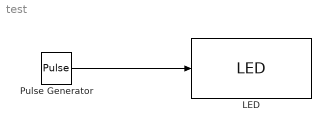
/*
 * test.c
 *
 * Academic License - for use in teaching, academic research, and meeting
 * course requirements at degree granting institutions only.  Not for
 * government, commercial, or other organizational use.
 *
 * Code generation for model "test".
 *
 * Model version              : 1.3
 * Simulink Coder version : 25.2 (R2025b) 28-Jul-2025
 * C source code generated on : Thu Apr  2 17:32:44 2026
 *
 * Target selection: ert.tlc
 * Note: GRT includes extra infrastructure and instrumentation for prototyping
 * Embedded hardware selection: ARM Compatible->ARM Cortex-A (64-bit)
 * Code generation objectives: Unspecified
 * Validation result: Not run
 */

#include "test.h"
#include "rtwtypes.h"
#include <string.h>
#include "test_private.h"
#include <math.h>

/* Block states (default storage) */
DW_test_T test_DW;

/* Real-time model */
static RT_MODEL_test_T test_M_;
RT_MODEL_test_T *const test_M = &test_M_;
real_T rt_roundd_snf(real_T u)
{
  real_T y;
  if (fabs(u) < 4.503599627370496E+15) {
    if (u >= 0.5) {
      y = floor(u + 0.5);
    } else if (u > -0.5) {
      y = u * 0.0;
    } else {
      y = ceil(u - 0.5);
    }
  } else {
    y = u;
  }

  return y;
}

/* Model step function */
void test_step(void)
{
  real_T rtb_PulseGenerator;
  int32_T i;
  char_T c[69];
  char_T d[5];
  uint8_T tmp;
  static const char_T c_0[69] = { 'I', 'n', 'v', 'a', 'l', 'i', 'd', ' ', 'L',
    'E', 'D', ' ', 'v', 'a', 'l', 'u', 'e', '.', ' ', 'L', 'E', 'D', ' ', 'v',
    'a', 'l', 'u', 'e', ' ', 'm', 'u', 's', 't', ' ', 'b', 'e', ' ', 'a', ' ',
    'l', 'o', 'g', 'i', 'c', 'a', 'l', ' ', 'v', 'a', 'l', 'u', 'e', ' ', '(',
    't', 'r', 'u', 'e', ' ', 'o', 'r', ' ', 'f', 'a', 'l', 's', 'e', ')', '.' };

  static const char_T d_0[5] = "none";

  /* DiscretePulseGenerator: '<Root>/Pulse Generator' */
  rtb_PulseGenerator = (test_DW.clockTickCounter < test_P.PulseGenerator_Duty) &&
    (test_DW.clockTickCounter >= 0) ? test_P.PulseGenerator_Amp : 0.0;
  if (test_DW.clockTickCounter >= test_P.PulseGenerator_Period - 1.0) {
    test_DW.clockTickCounter = 0;
  } else {
    test_DW.clockTickCounter++;
  }

  /* End of DiscretePulseGenerator: '<Root>/Pulse Generator' */

  /* MATLABSystem: '<Root>/LED' */
  if ((!(rtb_PulseGenerator == 0.0)) && (!(rtb_PulseGenerator == 1.0))) {
    memcpy(&c[0], &c_0[0], 69U * sizeof(char_T));
    perror(&c[0]);
  }

  for (i = 0; i < 5; i++) {
    d[i] = d_0[i];
  }

  EXT_LED_setTrigger(0U, &d[0]);
  rtb_PulseGenerator = rt_roundd_snf(rtb_PulseGenerator);
  if (rtb_PulseGenerator < 256.0) {
    if (rtb_PulseGenerator >= 0.0) {
      tmp = (uint8_T)rtb_PulseGenerator;
    } else {
      tmp = 0U;
    }
  } else {
    tmp = MAX_uint8_T;
  }

  EXT_LED_write(0U, tmp);

  /* End of MATLABSystem: '<Root>/LED' */
}
